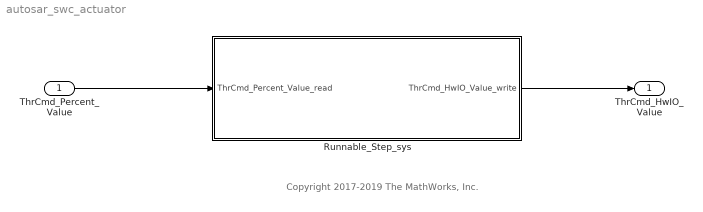
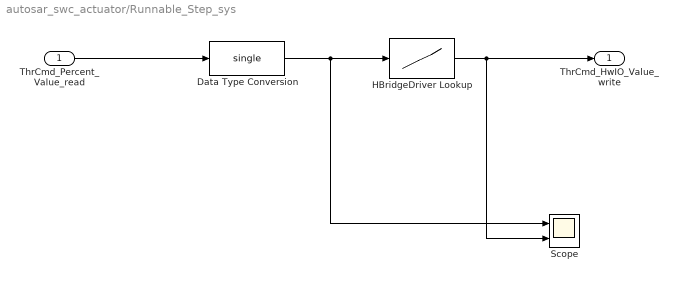
/*
 * File: autosar_swc_actuator.c
 *
 * Code generated for Simulink model 'autosar_swc_actuator'.
 *
 * Model version                  : 3.1
 * Simulink Coder version         : 9.5 (R2021a) 14-Nov-2020
 * C/C++ source code generated on : Thu Aug  7 15:20:36 2025
 *
 * Target selection: autosar.tlc
 * Embedded hardware selection: Intel->x86-64 (Windows64)
 * Code generation objectives: Unspecified
 * Validation result: Not run
 */

#include "autosar_swc_actuator.h"
#include "autosar_swc_actuator_private.h"

uint32 plook_u32f_linckan(float32 u, const float32 bp[], uint32 maxIndex)
{
  uint32 bpIndex;

  /* Prelookup - Index only
     Index Search method: 'linear'
     Interpolation method: 'Use nearest'
     Extrapolation method: 'Clip'
     Use previous index: 'off'
     Use last breakpoint for index at or above upper limit: 'on'
     Remove protection against out-of-range input in generated code: 'off'
   */
  if (u <= bp[0U]) {
    bpIndex = 0U;
  } else if (u < bp[maxIndex]) {
    bpIndex = linsearch_u32f(u, bp, maxIndex >> 1U);
    if ((bpIndex < maxIndex) && (bp[bpIndex + 1U] - u <= u - bp[bpIndex])) {
      bpIndex++;
    }
  } else {
    bpIndex = maxIndex;
  }

  return bpIndex;
}

uint32 linsearch_u32f(float32 u, const float32 bp[], uint32 startIndex)
{
  uint32 bpIndex;

  /* Linear Search */
  for (bpIndex = startIndex; u < bp[bpIndex]; bpIndex--) {
  }

  while (u >= bp[bpIndex + 1U]) {
    bpIndex++;
  }

  return bpIndex;
}

/* Model step function */
void Runnable_Step(void)
{
  /* Outputs for Atomic SubSystem: '<Root>/Runnable_Step_sys' */
  /* Outport: '<Root>/ThrCmd_HwIO_Value' incorporates:
   *  Inport: '<Root>/ThrCmd_Percent_Value'
   *  Lookup_n-D: '<S1>/HBridgeDriver Lookup'
   */
  Rte_IWrite_Runnable_Step_ThrCmd_HwIO_Value((Rte_CData_HBridgeCmd_LkupTbl())
    ->Table[plook_u32f_linckan(Rte_IRead_Runnable_Step_ThrCmd_Percent_Value(),
    (Rte_CData_HBridgeCmd_LkupTbl())->BP1, 20U)]);

  /* End of Outputs for SubSystem: '<Root>/Runnable_Step_sys' */
}
